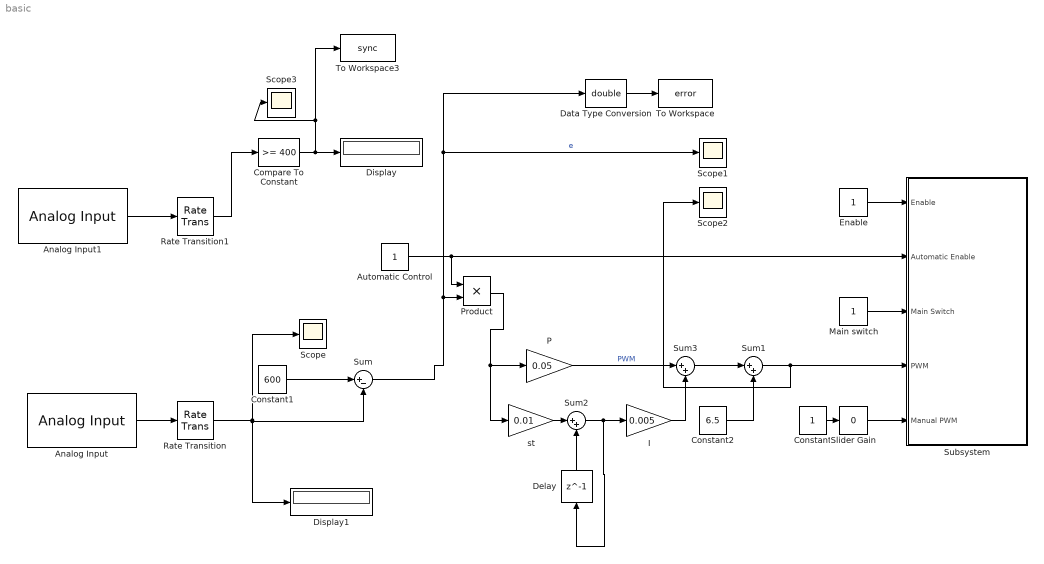
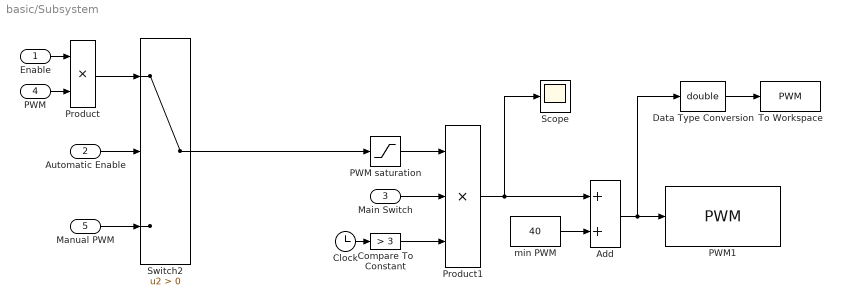
/*
 * basic.c
 *
 * Academic License - for use in teaching, academic research, and meeting
 * course requirements at degree granting institutions only.  Not for
 * government, commercial, or other organizational use.
 *
 * Code generation for model "basic".
 *
 * Model version              : 1.2
 * Simulink Coder version : 8.14 (R2018a) 06-Feb-2018
 * C source code generated on : Fri May 11 16:28:18 2018
 *
 * Target selection: ert.tlc
 * Note: GRT includes extra infrastructure and instrumentation for prototyping
 * Embedded hardware selection: ARM Compatible->ARM Cortex
 * Code generation objectives: Unspecified
 * Validation result: Not run
 */

#include "basic.h"
#include "basic_private.h"
#include "basic_dt.h"

/* Block signals (default storage) */
B_basic_T basic_B;

/* Block states (default storage) */
DW_basic_T basic_DW;

/* Real-time model */
RT_MODEL_basic_T basic_M_;
RT_MODEL_basic_T *const basic_M = &basic_M_;

/* Forward declaration for local functions */
static codertarget_arduinobase_in_b0_T *arduino_PWMOutput_arduino_PWMOu
  (codertarget_arduinobase_in_b0_T *obj);
static void SystemProp_matlabCodegenSetAnyP(codertarget_arduinobase_int_b_T *obj,
  boolean_T value);
static void matlabCodegenHandle_matlabCodeg(codertarget_arduinobase_int_b_T *obj);
static void SystemProp_matlabCodegenSetA_b0(codertarget_arduinobase_in_b0_T *obj,
  boolean_T value);
static void matlabCodegenHandle_matlabCo_b0(codertarget_arduinobase_in_b0_T *obj);
static void rate_monotonic_scheduler(void);

/*
 * Set which subrates need to run this base step (base rate always runs).
 * This function must be called prior to calling the model step function
 * in order to "remember" which rates need to run this base step.  The
 * buffering of events allows for overlapping preemption.
 */
void basic_SetEventsForThisBaseStep(boolean_T *eventFlags)
{
  /* Task runs when its counter is zero, computed via rtmStepTask macro */
  eventFlags[2] = ((boolean_T)rtmStepTask(basic_M, 2));
}

/*
 *   This function updates active task flag for each subrate
 * and rate transition flags for tasks that exchange data.
 * The function assumes rate-monotonic multitasking scheduler.
 * The function must be called at model base rate so that
 * the generated code self-manages all its subrates and rate
 * transition flags.
 */
static void rate_monotonic_scheduler(void)
{
  /* To ensure a deterministic data transfer between two rates,
   * data is transferred at the priority of a fast task and the frequency
   * of the slow task.  The following flags indicate when the data transfer
   * happens.  That is, a rate interaction flag is set true when both rates
   * will run, and false otherwise.
   */

  /* tid 1 shares data with slower tid rate: 2 */
  if (basic_M->Timing.TaskCounters.TID[1] == 0) {
    basic_M->Timing.RateInteraction.TID1_2 = (basic_M->Timing.TaskCounters.TID[2]
      == 0);
  }

  /* Compute which subrates run during the next base time step.  Subrates
   * are an integer multiple of the base rate counter.  Therefore, the subtask
   * counter is reset when it reaches its limit (zero means run).
   */
  (basic_M->Timing.TaskCounters.TID[2])++;
  if ((basic_M->Timing.TaskCounters.TID[2]) > 1) {/* Sample time: [0.01s, 0.0s] */
    basic_M->Timing.TaskCounters.TID[2] = 0;
  }
}

static codertarget_arduinobase_in_b0_T *arduino_PWMOutput_arduino_PWMOu
  (codertarget_arduinobase_in_b0_T *obj)
{
  codertarget_arduinobase_in_b0_T *b_obj;

  /* Start for MATLABSystem: '<S3>/PWM1' */
  obj->isInitialized = 0;
  b_obj = obj;
  obj->Hw.AvailablePwmPinNames.f1 = '2';
  obj->Hw.AvailablePwmPinNames.f2 = '3';
  obj->Hw.AvailablePwmPinNames.f3 = '4';
  obj->Hw.AvailablePwmPinNames.f4 = '5';
  obj->Hw.AvailablePwmPinNames.f5 = '6';
  obj->Hw.AvailablePwmPinNames.f6 = '7';
  obj->Hw.AvailablePwmPinNames.f7 = '8';
  obj->Hw.AvailablePwmPinNames.f8 = '9';
  obj->Hw.AvailablePwmPinNames.f9[0] = '1';
  obj->Hw.AvailablePwmPinNames.f9[1] = '0';
  obj->Hw.AvailablePwmPinNames.f10[0] = '1';
  obj->Hw.AvailablePwmPinNames.f10[1] = '1';
  obj->Hw.AvailablePwmPinNames.f11[0] = '1';
  obj->Hw.AvailablePwmPinNames.f11[1] = '2';
  obj->Hw.AvailablePwmPinNames.f12[0] = '1';
  obj->Hw.AvailablePwmPinNames.f12[1] = '3';
  obj->matlabCodegenIsDeleted = false;
  return b_obj;
}

static void SystemProp_matlabCodegenSetAnyP(codertarget_arduinobase_int_b_T *obj,
  boolean_T value)
{
  /* Start for MATLABSystem: '<Root>/Analog Input1' incorporates:
   *  MATLABSystem: '<Root>/Analog Input'
   */
  obj->matlabCodegenIsDeleted = value;
}

static void matlabCodegenHandle_matlabCodeg(codertarget_arduinobase_int_b_T *obj)
{
  /* Start for MATLABSystem: '<Root>/Analog Input1' incorporates:
   *  MATLABSystem: '<Root>/Analog Input'
   */
  if (!obj->matlabCodegenIsDeleted) {
    SystemProp_matlabCodegenSetAnyP(obj, true);
  }

  /* End of Start for MATLABSystem: '<Root>/Analog Input1' */
}

static void SystemProp_matlabCodegenSetA_b0(codertarget_arduinobase_in_b0_T *obj,
  boolean_T value)
{
  /* Start for MATLABSystem: '<S3>/PWM1' */
  obj->matlabCodegenIsDeleted = value;
}

static void matlabCodegenHandle_matlabCo_b0(codertarget_arduinobase_in_b0_T *obj)
{
  /* Start for MATLABSystem: '<S3>/PWM1' */
  if (!obj->matlabCodegenIsDeleted) {
    SystemProp_matlabCodegenSetA_b0(obj, true);
  }

  /* End of Start for MATLABSystem: '<S3>/PWM1' */
}

/* Model step function for TID0 */
void basic_step0(void)                 /* Sample time: [0.0s, 0.0s] */
{
  {                                    /* Sample time: [0.0s, 0.0s] */
    rate_monotonic_scheduler();
  }

  /* RateTransition: '<S3>/TmpRTBAtProduct1Inport1' */
  if (basic_M->Timing.RateInteraction.TID1_2) {
    basic_B.TmpRTBAtProduct1Inport1 = basic_DW.TmpRTBAtProduct1Inport1_Buffer0;

    /* RateTransition: '<S3>/TmpRTBAtProduct1Inport2' */
    basic_B.TmpRTBAtProduct1Inport2 = basic_DW.TmpRTBAtProduct1Inport2_Buffer0;
  }

  /* End of RateTransition: '<S3>/TmpRTBAtProduct1Inport1' */

  /* Product: '<S3>/Product1' incorporates:
   *  Clock: '<S3>/Clock'
   *  Constant: '<S4>/Constant'
   *  RelationalOperator: '<S4>/Compare'
   */
  basic_B.Product1 = basic_B.TmpRTBAtProduct1Inport1 *
    basic_B.TmpRTBAtProduct1Inport2 * (real_T)(basic_M->Timing.t[0] >
    basic_P.CompareToConstant_const);

  /* RateTransition: '<S3>/TmpRTBAtAddInport2' */
  if (basic_M->Timing.RateInteraction.TID1_2) {
    basic_B.TmpRTBAtAddInport2 = basic_DW.TmpRTBAtAddInport2_Buffer0;
  }

  /* End of RateTransition: '<S3>/TmpRTBAtAddInport2' */

  /* Sum: '<S3>/Add' */
  basic_B.DataTypeConversion_p = basic_B.Product1 + basic_B.TmpRTBAtAddInport2;

  /* Start for MATLABSystem: '<S3>/PWM1' */
  MW_PWM_SetDutyCycle(basic_DW.obj_n.MW_PWM_HANDLE, basic_B.DataTypeConversion_p);

  /* External mode */
  rtExtModeUploadCheckTrigger(3);
  rtExtModeUpload(1, basic_M->Timing.t[0]);

  /* signal main to stop simulation */
  {                                    /* Sample time: [0.0s, 0.0s] */
    if ((rtmGetTFinal(basic_M)!=-1) &&
        !((rtmGetTFinal(basic_M)-basic_M->Timing.t[0]) > basic_M->Timing.t[0] *
          (DBL_EPSILON))) {
      rtmSetErrorStatus(basic_M, "Simulation finished");
    }

    if (rtmGetStopRequested(basic_M)) {
      rtmSetErrorStatus(basic_M, "Simulation finished");
    }
  }

  /* Update absolute time */
  /* The "clockTick0" counts the number of times the code of this task has
   * been executed. The absolute time is the multiplication of "clockTick0"
   * and "Timing.stepSize0". Size of "clockTick0" ensures timer will not
   * overflow during the application lifespan selected.
   * Timer of this task consists of two 32 bit unsigned integers.
   * The two integers represent the low bits Timing.clockTick0 and the high bits
   * Timing.clockTickH0. When the low bit overflows to 0, the high bits increment.
   */
  if (!(++basic_M->Timing.clockTick0)) {
    ++basic_M->Timing.clockTickH0;
  }

  basic_M->Timing.t[0] = basic_M->Timing.clockTick0 * basic_M->Timing.stepSize0
    + basic_M->Timing.clockTickH0 * basic_M->Timing.stepSize0 * 4294967296.0;

  /* Update absolute time */
  /* The "clockTick1" counts the number of times the code of this task has
   * been executed. The resolution of this integer timer is 0.005, which is the step size
   * of the task. Size of "clockTick1" ensures timer will not overflow during the
   * application lifespan selected.
   * Timer of this task consists of two 32 bit unsigned integers.
   * The two integers represent the low bits Timing.clockTick1 and the high bits
   * Timing.clockTickH1. When the low bit overflows to 0, the high bits increment.
   */
  basic_M->Timing.clockTick1++;
  if (!basic_M->Timing.clockTick1) {
    basic_M->Timing.clockTickH1++;
  }
}

/* Model step function for TID2 */
void basic_step2(void)                 /* Sample time: [0.01s, 0.0s] */
{
  /* local block i/o variables */
  real_T rtb_Sum2;
  real_T rtb_PWMsaturation;
  boolean_T p;
  boolean_T p_0;
  uint16_T rtb_AnalogInput;
  real_T rtb_Switch2;

  /* Start for MATLABSystem: '<Root>/Analog Input' */
  p = false;
  p_0 = true;
  if (!(basic_DW.obj.SampleTime == basic_P.AnalogInput_SampleTime)) {
    p_0 = false;
  }

  if (p_0) {
    p = true;
  }

  if (!p) {
    basic_DW.obj.SampleTime = basic_P.AnalogInput_SampleTime;
  }

  MW_AnalogIn_Start(basic_DW.obj.MW_ANALOGIN_HANDLE);

  /* MATLABSystem: '<Root>/Analog Input' */
  MW_AnalogInSingle_ReadResult(basic_DW.obj.MW_ANALOGIN_HANDLE, &rtb_AnalogInput,
    3);

  /* RateTransition: '<Root>/Rate Transition' */
  basic_B.RateTransition = rtb_AnalogInput;

  /* Sum: '<Root>/Sum' incorporates:
   *  Constant: '<Root>/Constant1'
   */
  basic_B.e = basic_P.Constant1_Value - (real_T)basic_B.RateTransition;

  /* Product: '<Root>/Product' incorporates:
   *  Constant: '<Root>/Automatic Control'
   */
  rtb_Switch2 = basic_P.AutomaticControl_Value * basic_B.e;

  /* Sum: '<Root>/Sum2' incorporates:
   *  Delay: '<Root>/Delay'
   *  Gain: '<Root>/st'
   */
  rtb_Sum2 = basic_P.st_Gain * rtb_Switch2 + basic_DW.Delay_DSTATE;

  /* Sum: '<Root>/Sum1' incorporates:
   *  Constant: '<Root>/Constant2'
   *  Gain: '<Root>/I'
   *  Gain: '<Root>/P'
   *  Sum: '<Root>/Sum3'
   */
  basic_B.Sum1 = (basic_P.P_Gain * rtb_Switch2 + basic_P.I_Gain * rtb_Sum2) +
    basic_P.Constant2_Value;

  /* Switch: '<S3>/Switch2' incorporates:
   *  Constant: '<Root>/Automatic Control'
   *  Constant: '<Root>/Constant'
   *  Constant: '<Root>/Enable'
   *  Gain: '<S2>/Slider Gain'
   *  Product: '<S3>/Product'
   */
  if (basic_P.AutomaticControl_Value > basic_P.Switch2_Threshold) {
    rtb_Switch2 = basic_P.Enable_Value * basic_B.Sum1;
  } else {
    rtb_Switch2 = basic_P.SliderGain_gain * basic_P.Constant_Value;
  }

  /* End of Switch: '<S3>/Switch2' */

  /* Saturate: '<S3>/PWM saturation' */
  if (rtb_Switch2 > basic_P.PWMsaturation_UpperSat) {
    rtb_PWMsaturation = basic_P.PWMsaturation_UpperSat;
  } else if (rtb_Switch2 < basic_P.PWMsaturation_LowerSat) {
    rtb_PWMsaturation = basic_P.PWMsaturation_LowerSat;
  } else {
    rtb_PWMsaturation = rtb_Switch2;
  }

  /* End of Saturate: '<S3>/PWM saturation' */

  /* DataTypeConversion: '<Root>/Data Type Conversion' */
  basic_B.DataTypeConversion = basic_B.e;

  /* Start for MATLABSystem: '<Root>/Analog Input1' */
  p = false;
  p_0 = true;
  if (!(basic_DW.obj_i.SampleTime == basic_P.AnalogInput1_SampleTime)) {
    p_0 = false;
  }

  if (p_0) {
    p = true;
  }

  if (!p) {
    basic_DW.obj_i.SampleTime = basic_P.AnalogInput1_SampleTime;
  }

  MW_AnalogIn_Start(basic_DW.obj_i.MW_ANALOGIN_HANDLE);
  MW_AnalogInSingle_ReadResult(basic_DW.obj_i.MW_ANALOGIN_HANDLE,
    &rtb_AnalogInput, 3);

  /* End of Start for MATLABSystem: '<Root>/Analog Input1' */

  /* RelationalOperator: '<S1>/Compare' incorporates:
   *  Constant: '<S1>/Constant'
   *  MATLABSystem: '<Root>/Analog Input1'
   */
  basic_B.Compare = (rtb_AnalogInput >= basic_P.CompareToConstant_const_g);

  /* Update for Delay: '<Root>/Delay' */
  basic_DW.Delay_DSTATE = rtb_Sum2;

  /* Update for RateTransition: '<S3>/TmpRTBAtProduct1Inport1' */
  basic_DW.TmpRTBAtProduct1Inport1_Buffer0 = rtb_PWMsaturation;

  /* Update for RateTransition: '<S3>/TmpRTBAtProduct1Inport2' incorporates:
   *  Constant: '<Root>/Main switch'
   */
  basic_DW.TmpRTBAtProduct1Inport2_Buffer0 = basic_P.Mainswitch_Value;

  /* Update for RateTransition: '<S3>/TmpRTBAtAddInport2' incorporates:
   *  Constant: '<S3>/min PWM'
   */
  basic_DW.TmpRTBAtAddInport2_Buffer0 = basic_P.minPWM_Value;
  rtExtModeUpload(2, (((basic_M->Timing.clockTick2+basic_M->Timing.clockTickH2*
                        4294967296.0)) * 0.01));

  /* Update absolute time */
  /* The "clockTick2" counts the number of times the code of this task has
   * been executed. The resolution of this integer timer is 0.01, which is the step size
   * of the task. Size of "clockTick2" ensures timer will not overflow during the
   * application lifespan selected.
   * Timer of this task consists of two 32 bit unsigned integers.
   * The two integers represent the low bits Timing.clockTick2 and the high bits
   * Timing.clockTickH2. When the low bit overflows to 0, the high bits increment.
   */
  basic_M->Timing.clockTick2++;
  if (!basic_M->Timing.clockTick2) {
    basic_M->Timing.clockTickH2++;
  }
}
